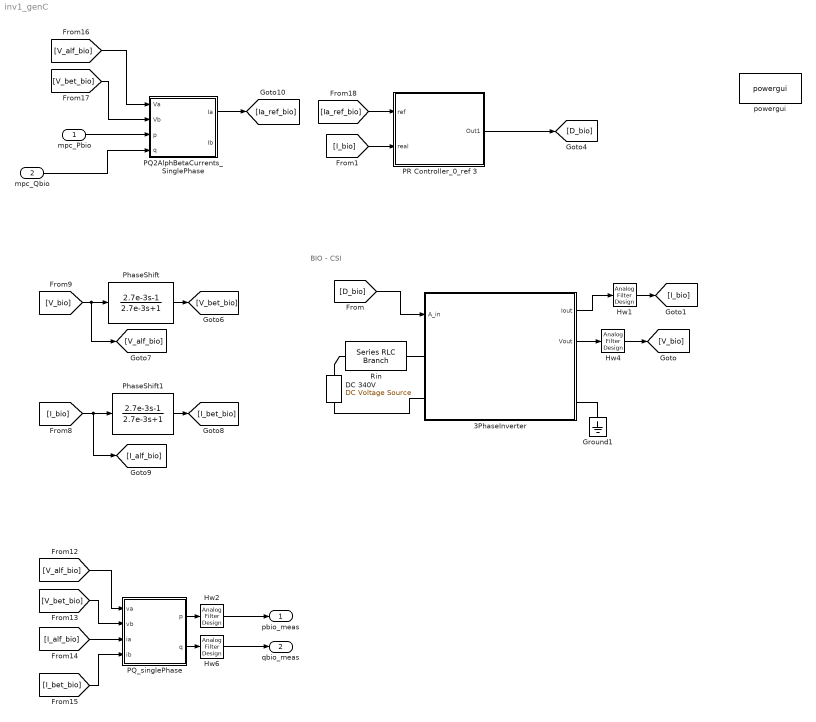
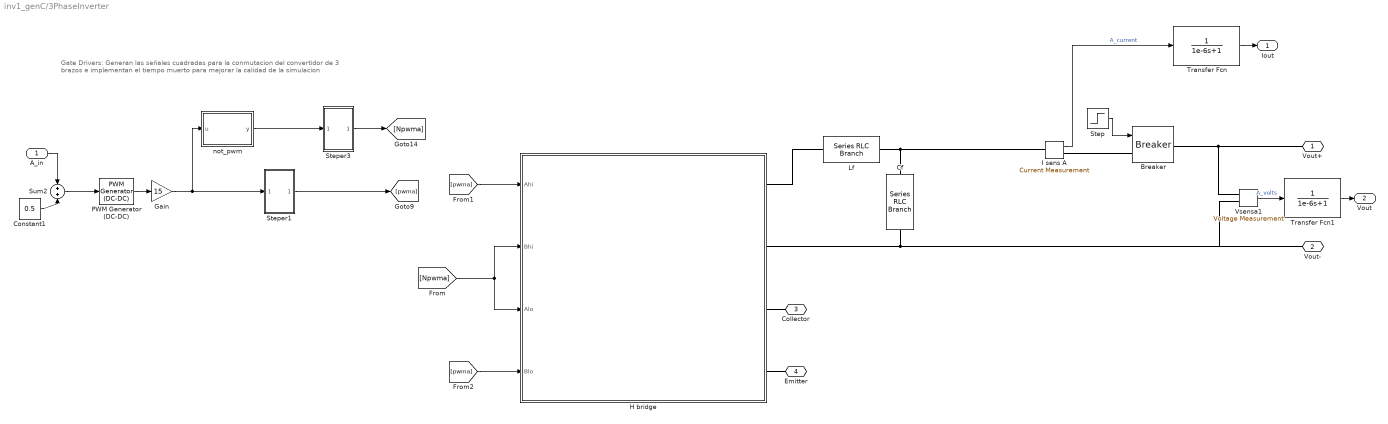
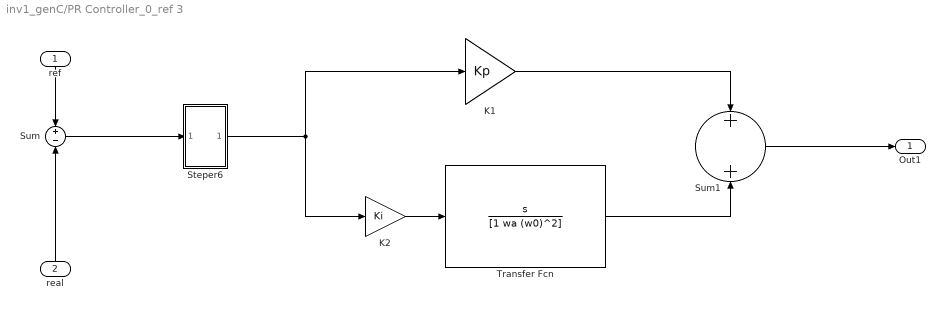
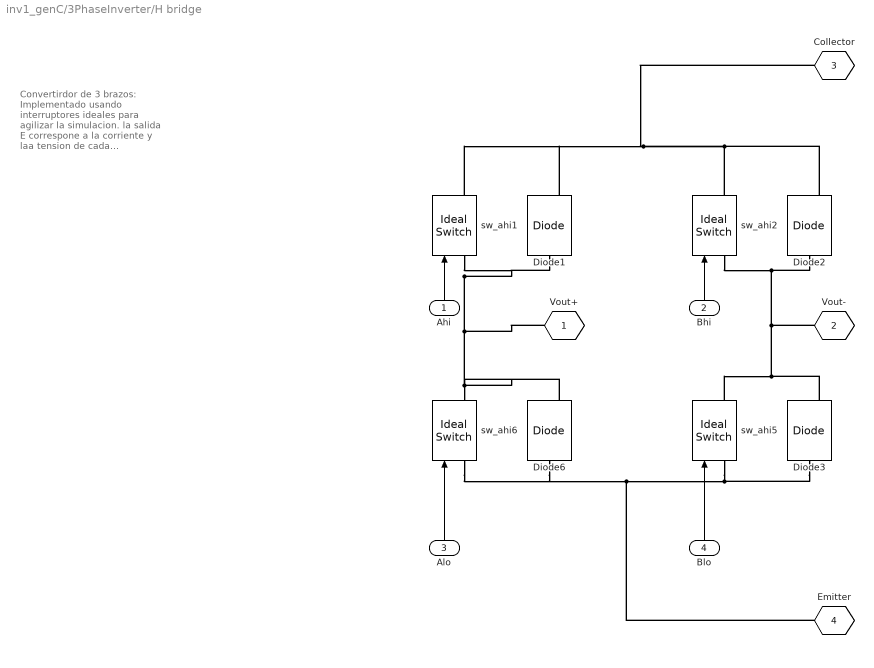
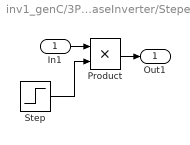
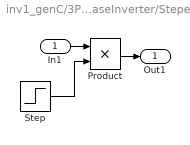
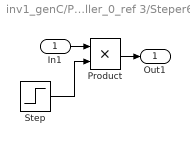
== matlab function inv1_genC/3PhaseInverter/not_pwm ==
function y = fcn(u)
%#codegen

if(u==0 || u<0)
    a=15;
else
    a=0;
end;

y = a;

== matlab function inv1_genC/PQ_singlePhase ==
function [p, q] = fcn(va, vb, ia, ib)
% Esta funcion calcula la potencia activa y reactiva instantanea
% para el caso mnosofasico. En la revision de 2 papers he observado
% que una manera de extender la teoria de potencia al caso monofasico
% es asumiendo la tension o corriente de una fase como la componente
% alpha y hacer un desfase de 90 grados para obtener una version
% artificial de beta.

paux=va*ia+vb*ib;
if(paux > 20e4)
    paux = 20e4;
end
if(paux < -20e4)
    paux = -20e-4;
end

p = paux/2; % potencia activa instantanea

qaux = vb*ia-va*ib;

if(qaux>20e4)
    qaux=20e4;
end
if(qaux<-20e4)
    qaux=-20e4;
end

q = qaux/2; % potencia reactiva instantanea

== matlab function inv1_genC/PQ2AlphBetaCurrents_SinglePhase ==
function [Ia, Ib] = fcn(Va, Vb, p, q)
%#codegen

% divide by zero protection
if(abs((Va^2+Vb^2))<=1000*eps(0))
    det = 1/eps(0);
else
    det = 1/(Va^2+Vb^2); % constante auxiliar
end;
%det = 1/(Va^2+Vb^2);

Mat = det*[Va Vb; Vb -Va];
Iab = Mat*[2*p;2*q];

Iaaux = Iab(1);
Ibaux = Iab(2);

ilim=1e3;

if(Iaaux>ilim)
    Iaaux=ilim;
end;
if(Iaaux<-ilim)
    Iaaux =-ilim;    
end;

if(isnan(Iaaux))
    Iaaux=0;
end;
%-----------------


if(Ibaux>ilim)
    Ibaux=ilim;
end;
if(Ibaux<-ilim)
    Ibaux =-ilim;    
end;

if(isnan(Ibaux))
    Ibaux=0;
end;
%-----------------


Ia = Iaaux;
Ib = Ibaux;

/*
 * File: inv1_genC.c
 *
 * Code generated for Simulink model 'inv1_genC'.
 *
 * Model version                  : 1.8
 * Simulink Coder version         : 8.12 (R2017a) 16-Feb-2017
 * C/C++ source code generated on : Mon Apr 23 08:05:12 2018
 *
 * Target selection: ert.tlc
 * Embedded hardware selection: Intel->x86-64 (Windows64)
 * Code generation objectives: Unspecified
 * Validation result: Not run
 */

#include "inv1_genC.h"
#include "inv1_genC_private.h"

/* Block signals (auto storage) */
B_inv1_genC_T inv1_genC_B;

/* Continuous states */
X_inv1_genC_T inv1_genC_X;

/* Block states (auto storage) */
DW_inv1_genC_T inv1_genC_DW;

/* External inputs (root inport signals with auto storage) */
ExtU_inv1_genC_T inv1_genC_U;

/* External outputs (root outports fed by signals with auto storage) */
ExtY_inv1_genC_T inv1_genC_Y;

/* Real-time model */
RT_MODEL_inv1_genC_T inv1_genC_M_;
RT_MODEL_inv1_genC_T *const inv1_genC_M = &inv1_genC_M_;

/*
 * This function updates continuous states using the ODE3 fixed-step
 * solver algorithm
 */
static void rt_ertODEUpdateContinuousStates(RTWSolverInfo *si )
{
  /* Solver Matrices */
  static const real_T rt_ODE3_A[3] = {
    1.0/2.0, 3.0/4.0, 1.0
  };

  static const real_T rt_ODE3_B[3][3] = {
    { 1.0/2.0, 0.0, 0.0 },

    { 0.0, 3.0/4.0, 0.0 },

    { 2.0/9.0, 1.0/3.0, 4.0/9.0 }
  };

  time_T t = rtsiGetT(si);
  time_T tnew = rtsiGetSolverStopTime(si);
  time_T h = rtsiGetStepSize(si);
  real_T *x = rtsiGetContStates(si);
  ODE3_IntgData *id = (ODE3_IntgData *)rtsiGetSolverData(si);
  real_T *y = id->y;
  real_T *f0 = id->f[0];
  real_T *f1 = id->f[1];
  real_T *f2 = id->f[2];
  real_T hB[3];
  int_T i;
  int_T nXc = 18;
  rtsiSetSimTimeStep(si,MINOR_TIME_STEP);

  /* Save the state values at time t in y, we'll use x as ynew. */
  (void) memcpy(y, x,
                (uint_T)nXc*sizeof(real_T));

  /* Assumes that rtsiSetT and ModelOutputs are up-to-date */
  /* f0 = f(t,y) */
  rtsiSetdX(si, f0);
  inv1_genC_derivatives();

  /* f(:,2) = feval(odefile, t + hA(1), y + f*hB(:,1), args(:)(*)); */
  hB[0] = h * rt_ODE3_B[0][0];
  for (i = 0; i < nXc; i++) {
    x[i] = y[i] + (f0[i]*hB[0]);
  }

  rtsiSetT(si, t + h*rt_ODE3_A[0]);
  rtsiSetdX(si, f1);
  inv1_genC_step();
  inv1_genC_derivatives();

  /* f(:,3) = feval(odefile, t + hA(2), y + f*hB(:,2), args(:)(*)); */
  for (i = 0; i <= 1; i++) {
    hB[i] = h * rt_ODE3_B[1][i];
  }

  for (i = 0; i < nXc; i++) {
    x[i] = y[i] + (f0[i]*hB[0] + f1[i]*hB[1]);
  }

  rtsiSetT(si, t + h*rt_ODE3_A[1]);
  rtsiSetdX(si, f2);
  inv1_genC_step();
  inv1_genC_derivatives();

  /* tnew = t + hA(3);
     ynew = y + f*hB(:,3); */
  for (i = 0; i <= 2; i++) {
    hB[i] = h * rt_ODE3_B[2][i];
  }

  for (i = 0; i < nXc; i++) {
    x[i] = y[i] + (f0[i]*hB[0] + f1[i]*hB[1] + f2[i]*hB[2]);
  }

  rtsiSetT(si, tnew);
  rtsiSetSimTimeStep(si,MAJOR_TIME_STEP);
}

real_T rt_remd_snf(real_T u0, real_T u1)
{
  real_T y;
  real_T q;
  if (!((!rtIsNaN(u0)) && (!rtIsInf(u0)) && ((!rtIsNaN(u1)) && (!rtIsInf(u1)))))
  {
    y = (rtNaN);
  } else if ((u1 != 0.0) && (u1 != trunc(u1))) {
    q = fabs(u0 / u1);
    if (fabs(q - floor(q + 0.5)) <= DBL_EPSILON * q) {
      y = 0.0 * u0;
    } else {
      y = fmod(u0, u1);
    }
  } else {
    y = fmod(u0, u1);
  }

  return y;
}

/* Model step function */
void inv1_genC_step(void)
{
  if (rtmIsMajorTimeStep(inv1_genC_M)) {
    /* set solver stop time */
    if (!(inv1_genC_M->Timing.clockTick0+1)) {
      rtsiSetSolverStopTime(&inv1_genC_M->solverInfo,
                            ((inv1_genC_M->Timing.clockTickH0 + 1) *
        inv1_genC_M->Timing.stepSize0 * 4294967296.0));
    } else {
      rtsiSetSolverStopTime(&inv1_genC_M->solverInfo,
                            ((inv1_genC_M->Timing.clockTick0 + 1) *
        inv1_genC_M->Timing.stepSize0 + inv1_genC_M->Timing.clockTickH0 *
        inv1_genC_M->Timing.stepSize0 * 4294967296.0));
    }
  }                                    /* end MajorTimeStep */

  /* Update absolute time of base rate at minor time step */
  if (rtmIsMinorTimeStep(inv1_genC_M)) {
    inv1_genC_M->Timing.t[0] = rtsiGetT(&inv1_genC_M->solverInfo);
  }

  {
    int32_T a;
    real_T rtb_Product;
    real_T rtb_PhaseShift;
    real_T rtb_PhaseShift1;
    real_T Sum2;
    if (rtmIsMajorTimeStep(inv1_genC_M)) {
      /* S-Function (sfun_spssw_discc): '<S48>/State-Space' incorporates:
       *  Constant: '<S33>/eee'
       *  Constant: '<S35>/eee'
       *  Constant: '<S37>/eee'
       *  Constant: '<S39>/eee'
       *  Constant: '<S46>/DC'
       *  Constant: '<S50>/SwitchCurrents'
       */

      /* S-Function block: <S48>/State-Space */
      {
        real_T accum;

        /* Circuit has switches */
        int_T *switch_status = (int_T*)
          inv1_genC_DW.StateSpace_PWORK.SWITCH_STATUS;
        int_T *switch_status_init = (int_T*)
          inv1_genC_DW.StateSpace_PWORK.SWITCH_STATUS_INIT;
        int_T *SwitchChange = (int_T*) inv1_genC_DW.StateSpace_PWORK.SW_CHG;
        int_T *gState = (int_T*) inv1_genC_DW.StateSpace_PWORK.G_STATE;
        real_T *yswitch = (real_T*)inv1_genC_DW.StateSpace_PWORK.Y_SWITCH;
        int_T *switchTypes = (int_T*) inv1_genC_DW.StateSpace_PWORK.SWITCH_TYPES;
        int_T *idxOutSw = (int_T*) inv1_genC_DW.StateSpace_PWORK.IDX_OUT_SW;
        real_T *DxCol = (real_T*)inv1_genC_DW.StateSpace_PWORK.DX_COL;
        real_T *tmp2 = (real_T*)inv1_genC_DW.StateSpace_PWORK.TMP2;
        real_T *BDcol = (real_T*)inv1_genC_DW.StateSpace_PWORK.BD_COL;
        real_T *tmp1 = (real_T*)inv1_genC_DW.StateSpace_PWORK.TMP1;
        real_T *uswlast = (real_T*)inv1_genC_DW.StateSpace_PWORK.USWLAST;
        int_T newState;
        int_T swChanged = 0;
        int loopsToDo = 20;
        real_T temp;

        /* keep an initial copy of switch_status*/
        memcpy(switch_status_init, switch_status, 9 * sizeof(int_T));
        memcpy(uswlast, &inv1_genC_B.StateSpace_o1[0], 9*sizeof(real_T));
        do {
          if (loopsToDo == 1) {        /* Need to reset some variables: */
            swChanged = 0;

            /* return to the original switch status*/
            {
              int_T i1;
              for (i1=0; i1 < 9; i1++) {
                swChanged = ((SwitchChange[i1] = switch_status_init[i1] -
                              switch_status[i1]) != 0) ? 1 : swChanged;
                switch_status[i1] = switch_status_init[i1];
              }
            }
          } else {
            /*
             * Compute outputs:
             * ---------------
             */
            real_T *Cs = (real_T*)inv1_genC_DW.StateSpace_PWORK.CS;
            real_T *Ds = (real_T*)inv1_genC_DW.StateSpace_PWORK.DS;

            {
              int_T i1;
              real_T *y0 = &inv1_genC_B.StateSpace_o1[0];
              for (i1=0; i1 < 11; i1++) {
                accum = 0.0;

                {
                  int_T i2;
                  real_T *xd = &inv1_genC_DW.StateSpace_DSTATE[0];
                  for (i2=0; i2 < 6; i2++) {
                    accum += *(Cs++) * xd[i2];
                  }
                }

                {
                  int_T i2;
                  const real_T *u0 = inv1_genC_ConstP.SwitchCurrents_Value;
                  for (i2=0; i2 < 9; i2++) {
                    accum += *(Ds++) * u0[i2];
                  }

                  accum += *(Ds++) * 340.0;
                  accum += *(Ds++) * 0.8;
                  accum += *(Ds++) * 0.8;
                  accum += *(Ds++) * 0.8;
                  accum += *(Ds++) * 0.8;
                }

                y0[i1] = accum;
              }
            }

            swChanged = 0;

            {
              int_T i1;
              real_T *y0 = &inv1_genC_B.StateSpace_o1[0];
              for (i1=0; i1 < 9; i1++) {
                switch (switchTypes[i1]) {
                 case 1 :              /* Ideal switch */
                  newState = gState[i1] > 0 ? 1 : 0;
                  break;

                 case 2 :              /* Breaker */
                  newState = (gState[i1] > 0) ? 1 : ((y0[i1]*uswlast[i1] < 0.0) ?
                    0 : switch_status[i1]);
                  break;

                 case 3 :              /* Diodes */
                  newState = y0[i1] > 0.0 ? 1 : ((y0[i1] < 0.0) ? 0 :
                    switch_status[i1]);
                  break;
                }

                swChanged = ((SwitchChange[i1] = newState - switch_status[i1])
                             != 0) ? 1 : swChanged;
                switch_status[i1] = newState;/* Keep new state */
              }
            }
          }

          /*
           * Compute new As, Bs, Cs and Ds matrixes:
           * --------------------------------------
           */
          if (swChanged) {
            real_T *As = (real_T*)inv1_genC_DW.StateSpace_PWORK.AS;
            real_T *Cs = (real_T*)inv1_genC_DW.StateSpace_PWORK.CS;
            real_T *Bs = (real_T*)inv1_genC_DW.StateSpace_PWORK.BS;
            real_T *Ds = (real_T*)inv1_genC_DW.StateSpace_PWORK.DS;
            real_T a1;

            {
              int_T i1;
              for (i1=0; i1 < 9; i1++) {
                if (SwitchChange[i1] != 0) {
                  a1 = yswitch[i1]*SwitchChange[i1];
                  temp = 1/(1-Ds[i1*15]*a1);

                  {
                    int_T i2;
                    for (i2=0; i2 < 11; i2++) {
                      DxCol[i2]= Ds[i2 * 14 + i1]*temp*a1;
                    }
                  }

                  DxCol[i1] = temp;

                  {
                    int_T i2;
                    for (i2=0; i2 < 6; i2++) {
                      BDcol[i2]= Bs[i2 * 14 + i1]*a1;
                    }
                  }

                  /* Copy row nSw of Cs into tmp1 and zero it out in Cs */
                  memcpy(tmp1, &Cs[i1 * 6], 6 * sizeof(real_T));
                  memset(&Cs[i1 * 6], '\0', 6 * sizeof(real_T));

                  /* Copy row nSw of Ds into tmp2 and zero it out in Ds */
                  memcpy(tmp2, &Ds[i1 * 14], 14 * sizeof(real_T));
                  memset(&Ds[i1 * 14], '\0', 14 * sizeof(real_T));

                  /* Cs = Cs + DxCol * tmp1, Ds = Ds + DxCol * tmp2 *******************/
                  {
                    int_T i2;
                    for (i2=0; i2 < 11; i2++) {
                      a1 = DxCol[i2];

                      {
                        int_T i3;
                        for (i3=0; i3 < 6; i3++) {
                          Cs[i2 * 6 + i3] += a1 * tmp1[i3];
                        }
                      }

                      {
                        int_T i3;
                        for (i3=0; i3 < 14; i3++) {
                          Ds[i2 * 14 + i3] += a1 * tmp2[i3];
                        }
                      }
                    }
                  }

                  /* As = As + BdCol*Cs(nSw,:), Bs = Bs + BdCol*Ds(nSw,:) *************/
                  {
                    int_T i2;
                    for (i2=0; i2 < 6; i2++) {
                      a1 = BDcol[i2];

                      {
                        int_T i3;
                        for (i3=0; i3 < 6; i3++) {
                          As[i2 * 6 + i3] += a1 * Cs[i1 * 6 + i3];
                        }
                      }

                      {
                        int_T i3;
                        for (i3=0; i3 < 14; i3++) {
                          Bs[i2 * 14 + i3] += a1 * Ds[i1 * 14 + i3];
                        }
                      }
                    }
                  }
                }
              }
            }
          }                            /* if (swChanged) */
        } while (swChanged > 0 && --loopsToDo > 0);

        if (loopsToDo == 0) {
          real_T *Cs = (real_T*)inv1_genC_DW.StateSpace_PWORK.CS;
          real_T *Ds = (real_T*)inv1_genC_DW.StateSpace_PWORK.DS;

          {
            int_T i1;
            real_T *y0 = &inv1_genC_B.StateSpace_o1[0];
            for (i1=0; i1 < 11; i1++) {
              accum = 0.0;

              {
                int_T i2;
                real_T *xd = &inv1_genC_DW.StateSpace_DSTATE[0];
                for (i2=0; i2 < 6; i2++) {
                  accum += *(Cs++) * xd[i2];
                }
              }

              {
                int_T i2;
                const real_T *u0 = inv1_genC_ConstP.SwitchCurrents_Value;
                for (i2=0; i2 < 9; i2++) {
                  accum += *(Ds++) * u0[i2];
                }

                accum += *(Ds++) * 340.0;
                accum += *(Ds++) * 0.8;
                accum += *(Ds++) * 0.8;
                accum += *(Ds++) * 0.8;
                accum += *(Ds++) * 0.8;
              }

              y0[i1] = accum;
            }
          }
        }

        /* Output new switches states */
        {
          int_T i1;
          real_T *y1 = &inv1_genC_B.StateSpace_o2[0];
          for (i1=0; i1 < 9; i1++) {
            y1[i1] = (real_T)switch_status[i1];
          }
        }
      }
    }

    /* Outport: '<Root>/pbio_meas' incorporates:
     *  StateSpace: '<Root>/Hw2'
     */
    inv1_genC_Y.pbio_meas = 0.94444980822600488 * inv1_genC_X.Hw2_CSTATE[3];

    /* Outport: '<Root>/qbio_meas' incorporates:
     *  StateSpace: '<Root>/Hw6'
     */
    inv1_genC_Y.qbio_meas = 0.94444980822600488 * inv1_genC_X.Hw6_CSTATE[3];

    /* TransferFcn: '<S1>/Transfer Fcn' */
    inv1_genC_B.TransferFcn = 0.0;
    inv1_genC_B.TransferFcn += 1.0E+6 * inv1_genC_X.TransferFcn_CSTATE;

    /* TransferFcn: '<S1>/Transfer Fcn1' */
    inv1_genC_B.TransferFcn1 = 0.0;
    inv1_genC_B.TransferFcn1 += 1.0E+6 * inv1_genC_X.TransferFcn1_CSTATE;

    /* StateSpace: '<Root>/Hw4' */
    inv1_genC_B.Hw4 = 0.0;
    inv1_genC_B.Hw4 += 1.0000000000000002 * inv1_genC_X.Hw4_CSTATE[1];

    /* TransferFcn: '<Root>/PhaseShift' */
    rtb_PhaseShift = -740.74074074074065 * inv1_genC_X.PhaseShift_CSTATE +
      0.99999999999999989 * inv1_genC_B.Hw4;

    /* MATLAB Function: '<Root>/PQ2AlphBetaCurrents_SinglePhase' incorporates:
     *  Inport: '<Root>/mpc_Pbio'
     *  Inport: '<Root>/mpc_Qbio'
     */
    /*  divide by zero protection */
    /* MATLAB Function 'PQ2AlphBetaCurrents_SinglePhase': '<S3>:1' */
    /* '<S3>:1:5' if(abs((Va^2+Vb^2))<=1000*eps(0)) */
    if (fabs(inv1_genC_B.Hw4 * inv1_genC_B.Hw4 + rtb_PhaseShift * rtb_PhaseShift)
        <= 4.94065645841247E-321) {
      /* '<S3>:1:6' det = 1/eps(0); */
      rtb_Product = (rtInf);
    } else {
      /* '<S3>:1:7' else */
      /* '<S3>:1:8' det = 1/(Va^2+Vb^2); */
      rtb_Product = 1.0 / (inv1_genC_B.Hw4 * inv1_genC_B.Hw4 + rtb_PhaseShift *
                           rtb_PhaseShift);

      /*  constante auxiliar */
    }

    /* det = 1/(Va^2+Vb^2); */
    /* '<S3>:1:12' Mat = det*[Va Vb; Vb -Va]; */
    /* '<S3>:1:13' Iab = Mat*[2*p;2*q]; */
    rtb_Product = rtb_Product * inv1_genC_B.Hw4 * (2.0 * inv1_genC_U.mpc_Pbio) +
      rtb_Product * rtb_PhaseShift * (2.0 * inv1_genC_U.mpc_Qbio);

    /* '<S3>:1:15' Iaaux = Iab(1); */
    /* '<S3>:1:16' Ibaux = Iab(2); */
    /* '<S3>:1:18' ilim=1e3; */
    /* '<S3>:1:20' if(Iaaux>ilim) */
    if (rtb_Product > 1000.0) {
      /* '<S3>:1:21' Iaaux=ilim; */
      rtb_Product = 1000.0;
    }

    /* '<S3>:1:23' if(Iaaux<-ilim) */
    if (rtb_Product < -1000.0) {
      /* '<S3>:1:24' Iaaux =-ilim; */
      rtb_Product = -1000.0;
    }

    /* '<S3>:1:27' if(isnan(Iaaux)) */
    if (rtIsNaN(rtb_Product)) {
      /* '<S3>:1:28' Iaaux=0; */
      rtb_Product = 0.0;
    }

    /* StateSpace: '<Root>/Hw1' */
    /* ----------------- */
    /* '<S3>:1:33' if(Ibaux>ilim) */
    /* '<S3>:1:36' if(Ibaux<-ilim) */
    /* '<S3>:1:40' if(isnan(Ibaux)) */
    /* ----------------- */
    /* '<S3>:1:46' Ia = Iaaux; */
    /* '<S3>:1:47' Ib = Ibaux; */
    inv1_genC_B.Hw1 = 0.0;
    inv1_genC_B.Hw1 += 1.0000000000000002 * inv1_genC_X.Hw1_CSTATE[1];

    /* Product: '<S47>/Product' incorporates:
     *  MATLAB Function: '<Root>/PQ2AlphBetaCurrents_SinglePhase'
     *  Step: '<S47>/Step'
     *  Sum: '<S5>/Sum'
     */
    rtb_Product = (rtb_Product - inv1_genC_B.Hw1) * (real_T)
      !(inv1_genC_M->Timing.t[0] < 0.001);

    /* Sum: '<S1>/Sum2' incorporates:
     *  Constant: '<S1>/Constant1'
     *  Gain: '<S5>/K1'
     *  Sum: '<S5>/Sum1'
     *  TransferFcn: '<S5>/Transfer Fcn'
     */
    Sum2 = ((0.0 * inv1_genC_X.TransferFcn_CSTATE_a[1] +
             inv1_genC_X.TransferFcn_CSTATE_a[0]) + 0.4 * rtb_Product) + 0.5;
    if (rtmIsMajorTimeStep(inv1_genC_M)) {
      /* Gain: '<S1>/Gain' incorporates:
       *  Constant: '<S42>/Constant'
       *  Constant: '<S44>/Constant2'
       *  DataTypeConversion: '<S10>/Data Type Conversion'
       *  DigitalClock: '<S44>/Digital Clock'
       *  Fcn: '<S10>/Fcn'
       *  Fcn: '<S44>/Fcn'
       *  Gain: '<S44>/1\ib1'
       *  Logic: '<S10>/Logical Operator'
       *  Math: '<S44>/Math Function'
       *  RelationalOperator: '<S10>/Relational Operator'
       *  RelationalOperator: '<S42>/Compare'
       */
      Sum2 = (real_T)((Sum2 != 0.0) && (Sum2 >= ((12000.0 * rt_remd_snf
        ((((inv1_genC_M->Timing.clockTick1+inv1_genC_M->Timing.clockTickH1*
            4294967296.0)) * 1.0E-6), 8.3333333333333331E-5) * 2.0 - 1.0) + 1.0)
        * 0.5)) * 15.0;

      /* Product: '<S11>/Product' incorporates:
       *  Step: '<S11>/Step'
       */
      inv1_genC_B.Product = (real_T)!((((inv1_genC_M->Timing.clockTick1+
        inv1_genC_M->Timing.clockTickH1* 4294967296.0)) * 1.0E-6) < 0.001) *
        Sum2;

      /* MATLAB Function: '<S1>/not_pwm' */
      /* MATLAB Function '3PhaseInverter/not_pwm': '<S14>:1' */
      /* '<S14>:1:4' if(u==0 || u<0) */
      if (Sum2 == 0.0) {
        /* '<S14>:1:5' a=15; */
        a = 15;
      } else {
        /* '<S14>:1:6' else */
        /* '<S14>:1:7' a=0; */
        a = 0;
      }

      /* Product: '<S12>/Product' incorporates:
       *  MATLAB Function: '<S1>/not_pwm'
       *  Step: '<S12>/Step'
       */
      /* '<S14>:1:10' y = a; */
      inv1_genC_B.Product_c = (real_T)!((((inv1_genC_M->Timing.clockTick1+
        inv1_genC_M->Timing.clockTickH1* 4294967296.0)) * 1.0E-6) < 0.001) *
        (real_T)a;
    }

    /* Lookup: '<S16>/Look-Up Table' incorporates:
     *  Clock: '<S16>/Clock'
     */
    inv1_genC_B.LookUpTable = rt_Lookup(inv1_genC_ConstP.LookUpTable_XData, 5,
      inv1_genC_M->Timing.t[0], inv1_genC_ConstP.LookUpTable_YData);

    /* Step: '<S1>/Step' */
    inv1_genC_B.Step = !(inv1_genC_M->Timing.t[0] < 0.001);

    /* TransferFcn: '<Root>/PhaseShift1' */
    rtb_PhaseShift1 = -740.74074074074065 * inv1_genC_X.PhaseShift1_CSTATE +
      0.99999999999999989 * inv1_genC_B.Hw1;

    /* MATLAB Function: '<Root>/PQ_singlePhase' */
    /*  Esta funcion calcula la potencia activa y reactiva instantanea */
    /*  para el caso mnosofasico. En la revision de 2 papers he observado */
    /*  que una manera de extender la teoria de potencia al caso monofasico */
    /*  es asumiendo la tension o corriente de una fase como la componente */
    /*  alpha y hacer un desfase de 90 grados para obtener una version */
    /*  artificial de beta. */
    /* MATLAB Function 'PQ_singlePhase': '<S4>:1' */
    /* '<S4>:1:9' paux=va*ia+vb*ib; */
    Sum2 = inv1_genC_B.Hw4 * inv1_genC_B.Hw1 + rtb_PhaseShift * rtb_PhaseShift1;

    /* '<S4>:1:10' if(paux > 20e4) */
    if (Sum2 > 200000.0) {
      /* '<S4>:1:11' paux = 20e4; */
      Sum2 = 200000.0;
    }

    /* '<S4>:1:13' if(paux < -20e4) */
    if (Sum2 < -200000.0) {
      /* '<S4>:1:14' paux = -20e-4; */
      Sum2 = -0.002;
    }

    /* '<S4>:1:17' p = paux/2; */
    inv1_genC_B.p = Sum2 / 2.0;

    /*  potencia activa instantanea */
    /* '<S4>:1:19' qaux = vb*ia-va*ib; */
    rtb_PhaseShift = rtb_PhaseShift * inv1_genC_B.Hw1 - inv1_genC_B.Hw4 *
      rtb_PhaseShift1;

    /* '<S4>:1:21' if(qaux>20e4) */
    if (rtb_PhaseShift > 200000.0) {
      /* '<S4>:1:22' qaux=20e4; */
      rtb_PhaseShift = 200000.0;
    }

    /* '<S4>:1:24' if(qaux<-20e4) */
    if (rtb_PhaseShift < -200000.0) {
      /* '<S4>:1:25' qaux=-20e4; */
      rtb_PhaseShift = -200000.0;
    }

    /* '<S4>:1:28' q = qaux/2; */
    inv1_genC_B.q = rtb_PhaseShift / 2.0;

    /* End of MATLAB Function: '<Root>/PQ_singlePhase' */

    /* Gain: '<S5>/K2' */
    /*  potencia reactiva instantanea */
    inv1_genC_B.K2 = 200.0 * rtb_Product;
  }

  if (rtmIsMajorTimeStep(inv1_genC_M)) {
    real_T *lastU;
    if (rtmIsMajorTimeStep(inv1_genC_M)) {
      /* Update for S-Function (sfun_spssw_discc): '<S48>/State-Space' incorporates:
       *  Constant: '<S33>/eee'
       *  Constant: '<S35>/eee'
       *  Constant: '<S37>/eee'
       *  Constant: '<S39>/eee'
       *  Constant: '<S46>/DC'
       *  Constant: '<S50>/SwitchCurrents'
       */

      /* S-Function block: <S48>/State-Space */
      {
        const real_T *As = (real_T*)inv1_genC_DW.StateSpace_PWORK.AS;
        const real_T *Bs = (real_T*)inv1_genC_DW.StateSpace_PWORK.BS;
        real_T *xtmp = (real_T*)inv1_genC_DW.StateSpace_PWORK.XTMP;
        real_T accum;

        /* Calculate new states... */
        {
          int_T i1;
          real_T *xd = &inv1_genC_DW.StateSpace_DSTATE[0];
          for (i1=0; i1 < 6; i1++) {
            accum = 0.0;

            {
              int_T i2;
              real_T *xd = &inv1_genC_DW.StateSpace_DSTATE[0];
              for (i2=0; i2 < 6; i2++) {
                accum += *(As++) * xd[i2];
              }
            }

            {
              int_T i2;
              const real_T *u0 = inv1_genC_ConstP.SwitchCurrents_Value;
              for (i2=0; i2 < 9; i2++) {
                accum += *(Bs++) * u0[i2];
              }

              accum += *(Bs++) * 340.0;
              accum += *(Bs++) * 0.8;
              accum += *(Bs++) * 0.8;
              accum += *(Bs++) * 0.8;
              accum += *(Bs++) * 0.8;
            }

            xtmp[i1] = accum;
          }
        }

        {
          int_T i1;
          real_T *xd = &inv1_genC_DW.StateSpace_DSTATE[0];
          for (i1=0; i1 < 6; i1++) {
            xd[i1] = xtmp[i1];
          }
        }

        {
          int_T *gState = (int_T*)inv1_genC_DW.StateSpace_PWORK.G_STATE;

          /* Store switch gates values for next step */
          *(gState++) = (int_T) inv1_genC_B.Product;
          *(gState++) = (int_T) inv1_genC_B.Product_c;
          *(gState++) = (int_T) inv1_genC_B.Product;
          *(gState++) = (int_T) inv1_genC_B.Product_c;
          *(gState++) = (int_T) inv1_genC_B.Step;
          *(gState++) = (int_T) 0.0;
          *(gState++) = (int_T) 0.0;
          *(gState++) = (int_T) 0.0;
          *(gState++) = (int_T) 0.0;
        }
      }
    }

    /* Update for Derivative: '<S16>/Derivative' */
    if (inv1_genC_DW.TimeStampA == (rtInf)) {
      inv1_genC_DW.TimeStampA = inv1_genC_M->Timing.t[0];
      lastU = &inv1_genC_DW.LastUAtTimeA;
    } else if (inv1_genC_DW.TimeStampB == (rtInf)) {
      inv1_genC_DW.TimeStampB = inv1_genC_M->Timing.t[0];
      lastU = &inv1_genC_DW.LastUAtTimeB;
    } else if (inv1_genC_DW.TimeStampA < inv1_genC_DW.TimeStampB) {
      inv1_genC_DW.TimeStampA = inv1_genC_M->Timing.t[0];
      lastU = &inv1_genC_DW.LastUAtTimeA;
    } else {
      inv1_genC_DW.TimeStampB = inv1_genC_M->Timing.t[0];
      lastU = &inv1_genC_DW.LastUAtTimeB;
    }

    *lastU = inv1_genC_B.LookUpTable;

    /* End of Update for Derivative: '<S16>/Derivative' */
  }                                    /* end MajorTimeStep */

  if (rtmIsMajorTimeStep(inv1_genC_M)) {
    rt_ertODEUpdateContinuousStates(&inv1_genC_M->solverInfo);

    /* Update absolute time for base rate */
    /* The "clockTick0" counts the number of times the code of this task has
     * been executed. The absolute time is the multiplication of "clockTick0"
     * and "Timing.stepSize0". Size of "clockTick0" ensures timer will not
     * overflow during the application lifespan selected.
     * Timer of this task consists of two 32 bit unsigned integers.
     * The two integers represent the low bits Timing.clockTick0 and the high bits
     * Timing.clockTickH0. When the low bit overflows to 0, the high bits increment.
     */
    if (!(++inv1_genC_M->Timing.clockTick0)) {
      ++inv1_genC_M->Timing.clockTickH0;
    }

    inv1_genC_M->Timing.t[0] = rtsiGetSolverStopTime(&inv1_genC_M->solverInfo);

    {
      /* Update absolute timer for sample time: [1.0E-6s, 0.0s] */
      /* The "clockTick1" counts the number of times the code of this task has
       * been executed. The resolution of this integer timer is 1.0E-6, which is the step size
       * of the task. Size of "clockTick1" ensures timer will not overflow during the
       * application lifespan selected.
       * Timer of this task consists of two 32 bit unsigned integers.
       * The two integers represent the low bits Timing.clockTick1 and the high bits
       * Timing.clockTickH1. When the low bit overflows to 0, the high bits increment.
       */
      inv1_genC_M->Timing.clockTick1++;
      if (!inv1_genC_M->Timing.clockTick1) {
        inv1_genC_M->Timing.clockTickH1++;
      }
    }
  }                                    /* end MajorTimeStep */
}
